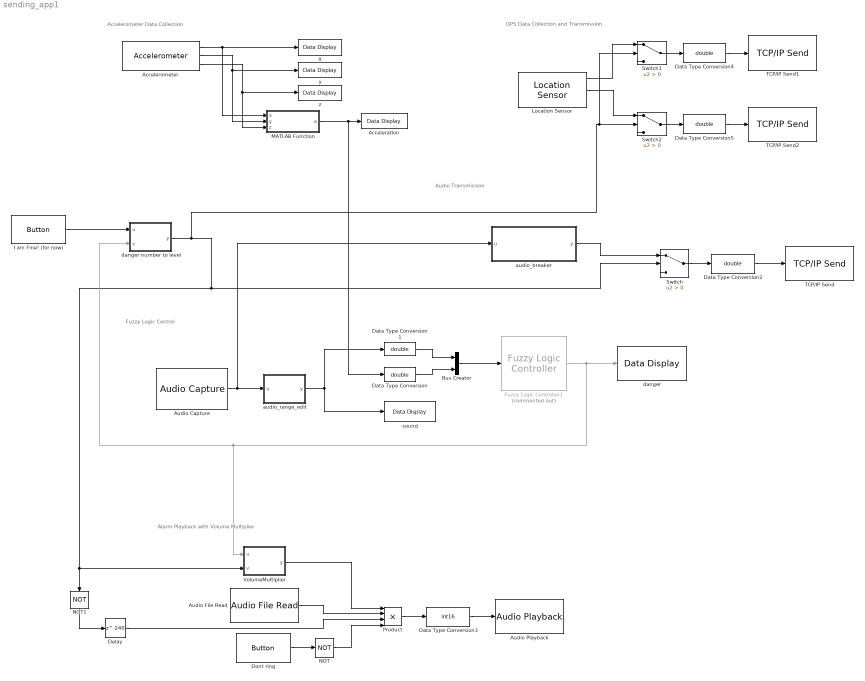
== matlab function sending_app1/MATLAB Function ==
function a = fcn(x,y,z)
x = x/60;
y = y/80;
z = z/80;

ai = (x^2)+(y^2)+(z^2);
b = ai^0.5;
a = b;

== matlab function sending_app1/audio_breaker ==
function y = fcn(u)
y = u(:,1);

== matlab function sending_app1/danger number to level
 ==
function y = fcn(u,v)
persistent flag;

    if isempty(flag)
        flag = 0;
    end

    if u == 1
        flag = 0;
        y = 0;
    elseif v > 0.45
        flag = 1;
        y = 1;
    else
        y = flag;
    end
end

== matlab function sending_app1/VolumeMultiplier ==
function y = fcn(u, v)
    if v ==1
               y = 1;
    elseif u < 0.25
        y = 0;
    elseif u >= 0.20 && u < 0.35
        y = 0.2;
    else
        y = 1;
    end

== matlab function sending_app1/audio_range_edit ==
function y = fcn(u)
ui = abs(u);
yi = mean(ui,2);
y = mean(yi)/20000;

/*
 * sending_app1.c
 *
 * Academic License - for use in teaching, academic research, and meeting
 * course requirements at degree granting institutions only.  Not for
 * government, commercial, or other organizational use.
 *
 * Code generation for model "sending_app1".
 *
 * Model version              : 1.29
 * Simulink Coder version : 9.8 (R2022b) 13-May-2022
 * C source code generated on : Sun Apr  7 22:21:16 2024
 *
 * Target selection: ert.tlc
 * Note: GRT includes extra infrastructure and instrumentation for prototyping
 * Embedded hardware selection: ARM Compatible->ARM Cortex
 * Code generation objectives: Unspecified
 * Validation result: Not run
 */

#include "sending_app1.h"
#include "rtwtypes.h"
#include "sending_app1_types.h"
#include <string.h>
#include <math.h>
#include "rt_nonfinite.h"
#include "sending_app1_private.h"
#include <stddef.h>

/* Block signals (default storage) */
B_sending_app1_T sending_app1_B;

/* Block states (default storage) */
DW_sending_app1_T sending_app1_DW;

/* Real-time model */
static RT_MODEL_sending_app1_T sending_app1_M_;
RT_MODEL_sending_app1_T *const sending_app1_M = &sending_app1_M_;

/* Forward declaration for local functions */
static void sending_app1_SystemCore_setup(codertarget_internal_androidT_T *obj);
static void sending_app1_SystemCore_setup_e(codertarget_internal_androidT_T *obj);
static void sending_app_SystemCore_setup_eu(codertarget_internal_androidT_T *obj);
static real_T sending_app1_trimf(real_T x, const real_T params[3]);
static void sending_app1_trimf_d(const real_T x[101], const real_T params[3],
  real_T y[101]);
static void rate_scheduler(void);

/*
 *         This function updates active task flag for each subrate.
 *         The function is called at model base rate, hence the
 *         generated code self-manages all its subrates.
 */
static void rate_scheduler(void)
{
  /* Compute which subrates run during the next base time step.  Subrates
   * are an integer multiple of the base rate counter.  Therefore, the subtask
   * counter is reset when it reaches its limit (zero means run).
   */
  (sending_app1_M->Timing.TaskCounters.TID[1])++;
  if ((sending_app1_M->Timing.TaskCounters.TID[1]) > 7) {/* Sample time: [0.1s, 0.0s] */
    sending_app1_M->Timing.TaskCounters.TID[1] = 0;
  }
}

real_T rt_roundd_snf(real_T u)
{
  real_T y;
  if (fabs(u) < 4.503599627370496E+15) {
    if (u >= 0.5) {
      y = floor(u + 0.5);
    } else if (u > -0.5) {
      y = u * 0.0;
    } else {
      y = ceil(u - 0.5);
    }
  } else {
    y = u;
  }

  return y;
}

static void sending_app1_SystemCore_setup(codertarget_internal_androidT_T *obj)
{
  real_T tmp;
  int32_T i;
  int16_T errorNo;
  uint16_T tmp_0;
  char_T b_str_data[7];
  char_T ipaddr[7];
  static const char_T tmp_1[7] = "Server";
  int32_T str_size_idx_1;
  obj->isInitialized = 1;
  errorNo = obj->errorNo_;
  obj->isServer_ = 1.0;
  for (i = 0; i < 7; i++) {
    ipaddr[i] = tmp_1[i];
  }

  tmp = rt_roundd_snf(obj->isServer_);
  if (tmp < 65536.0) {
    if (tmp >= 0.0) {
      tmp_0 = (uint16_T)tmp;
    } else {
      tmp_0 = 0U;
    }
  } else {
    tmp_0 = MAX_uint16_T;
  }

  TCPStreamSetup(25000, 0, &obj->connStream_, tmp_0, 0.0, &obj->errorNo_,
                 &ipaddr[0]);
  littleEndianCheck(&obj->isLittleEnd_);
  if ((errorNo != obj->errorNo_) && (obj->errorNo_ > 0) && (obj->errorNo_ < 10))
  {
    str_size_idx_1 = 1;
    ipaddr[0] = '\x00';
    if (obj->errorNo_ == 4) {
      UPDATE_TCP_LOGI(obj->errorNo_, 1.0, 0, 25000);
    } else {
      if (obj->errorNo_ == 5) {
        str_size_idx_1 = 7;
        for (i = 0; i < 7; i++) {
          ipaddr[i] = tmp_1[i];
        }
      }

      memcpy(&b_str_data[0], &ipaddr[0], (uint32_T)str_size_idx_1 * sizeof
             (char_T));
      UPDATE_TCP_LOGS(obj->errorNo_, 1.0, 0, &b_str_data[0]);
    }
  }
}

static void sending_app1_SystemCore_setup_e(codertarget_internal_androidT_T *obj)
{
  real_T tmp;
  int32_T i;
  int16_T errorNo;
  uint16_T tmp_0;
  char_T b_str_data[7];
  char_T ipaddr[7];
  static const char_T tmp_1[7] = "Server";
  int32_T str_size_idx_1;
  obj->isInitialized = 1;
  errorNo = obj->errorNo_;
  obj->isServer_ = 1.0;
  for (i = 0; i < 7; i++) {
    ipaddr[i] = tmp_1[i];
  }

  tmp = rt_roundd_snf(obj->isServer_);
  if (tmp < 65536.0) {
    if (tmp >= 0.0) {
      tmp_0 = (uint16_T)tmp;
    } else {
      tmp_0 = 0U;
    }
  } else {
    tmp_0 = MAX_uint16_T;
  }

  TCPStreamSetup(30000, 0, &obj->connStream_, tmp_0, 0.0, &obj->errorNo_,
                 &ipaddr[0]);
  littleEndianCheck(&obj->isLittleEnd_);
  if ((errorNo != obj->errorNo_) && (obj->errorNo_ > 0) && (obj->errorNo_ < 10))
  {
    str_size_idx_1 = 1;
    ipaddr[0] = '\x00';
    if (obj->errorNo_ == 4) {
      UPDATE_TCP_LOGI(obj->errorNo_, 2.0, 0, 25000);
    } else {
      if (obj->errorNo_ == 5) {
        str_size_idx_1 = 7;
        for (i = 0; i < 7; i++) {
          ipaddr[i] = tmp_1[i];
        }
      }

      memcpy(&b_str_data[0], &ipaddr[0], (uint32_T)str_size_idx_1 * sizeof
             (char_T));
      UPDATE_TCP_LOGS(obj->errorNo_, 2.0, 0, &b_str_data[0]);
    }
  }
}

static void sending_app_SystemCore_setup_eu(codertarget_internal_androidT_T *obj)
{
  real_T tmp;
  int32_T i;
  int16_T errorNo;
  uint16_T tmp_0;
  char_T b_str_data[7];
  char_T ipaddr[7];
  static const char_T tmp_1[7] = "Server";
  int32_T str_size_idx_1;
  obj->isInitialized = 1;
  errorNo = obj->errorNo_;
  obj->isServer_ = 1.0;
  for (i = 0; i < 7; i++) {
    ipaddr[i] = tmp_1[i];
  }

  tmp = rt_roundd_snf(obj->isServer_);
  if (tmp < 65536.0) {
    if (tmp >= 0.0) {
      tmp_0 = (uint16_T)tmp;
    } else {
      tmp_0 = 0U;
    }
  } else {
    tmp_0 = MAX_uint16_T;
  }

  TCPStreamSetup(35000, 0, &obj->connStream_, tmp_0, 0.0, &obj->errorNo_,
                 &ipaddr[0]);
  littleEndianCheck(&obj->isLittleEnd_);
  if ((errorNo != obj->errorNo_) && (obj->errorNo_ > 0) && (obj->errorNo_ < 10))
  {
    str_size_idx_1 = 1;
    ipaddr[0] = '\x00';
    if (obj->errorNo_ == 4) {
      UPDATE_TCP_LOGI(obj->errorNo_, 3.0, 0, 25000);
    } else {
      if (obj->errorNo_ == 5) {
        str_size_idx_1 = 7;
        for (i = 0; i < 7; i++) {
          ipaddr[i] = tmp_1[i];
        }
      }

      memcpy(&b_str_data[0], &ipaddr[0], (uint32_T)str_size_idx_1 * sizeof
             (char_T));
      UPDATE_TCP_LOGS(obj->errorNo_, 3.0, 0, &b_str_data[0]);
    }
  }
}

/* Function for MATLAB Function: '<S6>/Evaluate Rule Antecedents' */
static real_T sending_app1_trimf(real_T x, const real_T params[3])
{
  real_T y;
  y = 0.0;
  if ((params[0] != params[1]) && (params[0] < x) && (x < params[1])) {
    y = 1.0 / (params[1] - params[0]) * (x - params[0]);
  }

  if ((params[1] != params[2]) && (params[1] < x) && (x < params[2])) {
    y = 1.0 / (params[2] - params[1]) * (params[2] - x);
  }

  if (x == params[1]) {
    y = 1.0;
  }

  return y;
}

/* Function for MATLAB Function: '<S6>/Evaluate Rule Consequents' */
static void sending_app1_trimf_d(const real_T x[101], const real_T params[3],
  real_T y[101])
{
  int32_T i;
  sending_app1_B.a = params[0];
  sending_app1_B.b = params[1];
  sending_app1_B.c = params[2];
  for (i = 0; i < 101; i++) {
    sending_app1_B.x = x[i];
    y[i] = 0.0;
    if ((sending_app1_B.a != sending_app1_B.b) && (sending_app1_B.a <
         sending_app1_B.x) && (sending_app1_B.x < sending_app1_B.b)) {
      y[i] = 1.0 / (sending_app1_B.b - sending_app1_B.a) * (sending_app1_B.x -
        sending_app1_B.a);
    }

    if ((sending_app1_B.b != sending_app1_B.c) && (sending_app1_B.b <
         sending_app1_B.x) && (sending_app1_B.x < sending_app1_B.c)) {
      y[i] = 1.0 / (sending_app1_B.c - sending_app1_B.b) * (sending_app1_B.c -
        sending_app1_B.x);
    }

    if (sending_app1_B.x == sending_app1_B.b) {
      y[i] = 1.0;
    }
  }
}

/* Model step function */
void sending_app1_step(void)
{
  int32_T i;
  int32_T rtb_MATLABSystem_tmp;
  int32_T ui_tmp;
  real32_T b_a;
  real32_T c_a;
  real32_T rtb_Accelerometer_o1;
  real32_T rtb_Accelerometer_o2;
  real32_T rtb_Accelerometer_o3;
  real32_T rtb_a;
  int16_T errorNo;
  uint16_T tmp_0;
  char_T b_str_data[7];
  char_T b_FormatStringTerminated[5];
  char_T b_FormatStringTerminated_0[5];
  uint8_T xtmp;
  boolean_T rtb_NOT;
  boolean_T tmp;
  static const char_T tmp_1[7] = "Server";
  static const int8_T d[12] = { 1, 1, 2, 1, 2, 2, 2, 3, 3, 3, 3, 3 };

  static const real_T d_0[3] = { 0.583333333333333, 1.0, 1.41666666666667 };

  static const real_T c[3] = { 0.0833333333333333, 0.5, 0.916666666666667 };

  static const int8_T f[24] = { 1, 2, 3, 1, 2, 3, 1, 2, 3, 4, 4, 4, 1, 1, 1, 2,
    2, 2, 3, 3, 3, 1, 2, 3 };

  static const real_T e[3] = { 0.0, 0.0, 0.001 };

  static const real_T b[3] = { 0.0007, 0.005, 0.4167 };

  /* MATLABSystem: '<S3>/MATLAB System' */
  AUDIO_CAPTURE(&sending_app1_B.refData[0], 300);
  for (i = 0; i < 300; i++) {
    rtb_MATLABSystem_tmp = i << 1;
    sending_app1_B.MATLABSystem[i] = sending_app1_B.refData[rtb_MATLABSystem_tmp];
    sending_app1_B.MATLABSystem[i + 300] =
      sending_app1_B.refData[rtb_MATLABSystem_tmp + 1];
  }

  /* End of MATLABSystem: '<S3>/MATLAB System' */

  /* MATLABSystem: '<Root>/Audio File Read' */
  memset(&sending_app1_B.refData[0], 0, 600U * sizeof(int16_T));
  i = sending_app1_DW.obj_b.Idx;
  if (sending_app1_DW.obj_b.Idx < 0) {
    i = 0;
  }

  READ_AUDIOFILE_DATA(300U, 2U, &sending_app1_B.refData[0], (uint32_T)i);

  /* MATLAB Function: '<Root>/audio_range_edit' incorporates:
   *  MATLABSystem: '<S3>/MATLAB System'
   */
  for (rtb_MATLABSystem_tmp = 0; rtb_MATLABSystem_tmp < 600;
       rtb_MATLABSystem_tmp++) {
    errorNo = sending_app1_B.MATLABSystem[rtb_MATLABSystem_tmp];
    if (errorNo < 0) {
      i = -errorNo;
      if (-errorNo > 32767) {
        i = 32767;
      }

      sending_app1_B.ui[rtb_MATLABSystem_tmp] = (int16_T)i;
    } else {
      sending_app1_B.ui[rtb_MATLABSystem_tmp] = errorNo;
    }
  }

  for (i = 0; i < 300; i++) {
    sending_app1_B.DataTypeConversion2[i] = ((real_T)sending_app1_B.ui[i + 300]
      + (real_T)sending_app1_B.ui[i]) / 2.0;
  }

  sending_app1_B.y_l = sending_app1_B.DataTypeConversion2[0];
  for (i = 0; i < 299; i++) {
    sending_app1_B.y_l += sending_app1_B.DataTypeConversion2[i + 1];
  }

  sending_app1_B.y_l = sending_app1_B.y_l / 300.0 / 20000.0;

  /* End of MATLAB Function: '<Root>/audio_range_edit' */
  if (sending_app1_M->Timing.TaskCounters.TID[1] == 0) {
    /* MATLABSystem: '<S2>/Accelerometer' */
    sending_app1_B.out_m[0] = 0.0F;
    sending_app1_B.out_m[1] = 0.0F;
    sending_app1_B.out_m[2] = 0.0F;
    GET_ACCELEROMETER_DATA(&sending_app1_B.out_m[0], &sending_app1_B.out_m[1],
      &sending_app1_B.out_m[2]);
    rtb_Accelerometer_o1 = sending_app1_B.out_m[0];
    rtb_Accelerometer_o2 = sending_app1_B.out_m[1];
    rtb_Accelerometer_o3 = sending_app1_B.out_m[2];

    /* MATLAB Function: '<Root>/MATLAB Function' incorporates:
     *  MATLABSystem: '<S2>/Accelerometer'
     */
    rtb_a = sending_app1_B.out_m[0] / 60.0F;
    b_a = sending_app1_B.out_m[1] / 80.0F;
    c_a = sending_app1_B.out_m[2] / 80.0F;
    rtb_a = (real32_T)sqrt((rtb_a * rtb_a + b_a * b_a) + c_a * c_a);

    /* DataTypeConversion: '<Root>/Data Type Conversion' */
    sending_app1_B.DataTypeConversion = rtb_a;
  }

  /* Outputs for Atomic SubSystem: '<Root>/Fuzzy Logic  Controller1' */
  /* MATLAB Function: '<S6>/Evaluate Rule Antecedents' incorporates:
   *  DataTypeConversion: '<S6>/InputConversion'
   */
  sending_app1_B.y = 0.0;
  sending_app1_B.inputMFCache[0] = sending_app1_trimf(sending_app1_B.y_l, b);
  sending_app1_B.inputMFCache[1] = sending_app1_trimf(sending_app1_B.y_l, c);
  sending_app1_B.inputMFCache[2] = sending_app1_trimf(sending_app1_B.y_l, d_0);
  sending_app1_B.inputMFCache[3] = sending_app1_trimf(sending_app1_B.y_l, e);
  sending_app1_B.dv3[0] = -0.416666666666667;
  sending_app1_B.dv3[1] = 0.0;
  sending_app1_B.dv3[2] = 0.416666666666667;
  sending_app1_B.inputMFCache[4] = sending_app1_trimf
    (sending_app1_B.DataTypeConversion, sending_app1_B.dv3);
  sending_app1_B.inputMFCache[5] = sending_app1_trimf
    (sending_app1_B.DataTypeConversion, c);
  sending_app1_B.inputMFCache[6] = sending_app1_trimf
    (sending_app1_B.DataTypeConversion, d_0);
  for (i = 0; i < 12; i++) {
    sending_app1_B.rtb_InputConversion_idx_1 = sending_app1_B.inputMFCache[f[i]
      - 1];
    if (sending_app1_B.rtb_InputConversion_idx_1 < 1.0) {
      sending_app1_B.y_k = sending_app1_B.rtb_InputConversion_idx_1;
    } else {
      sending_app1_B.y_k = 1.0;
    }

    sending_app1_B.rtb_InputConversion_idx_1 = sending_app1_B.inputMFCache[f[i +
      12] + 3];
    if ((sending_app1_B.y_k > sending_app1_B.rtb_InputConversion_idx_1) ||
        (rtIsNaN(sending_app1_B.y_k) && (!rtIsNaN
          (sending_app1_B.rtb_InputConversion_idx_1)))) {
      sending_app1_B.y_k = sending_app1_B.rtb_InputConversion_idx_1;
    }

    sending_app1_B.y += sending_app1_B.y_k;
    sending_app1_B.antecedentOutputs[i] = sending_app1_B.y_k;
  }

  /* MATLAB Function: '<S6>/Evaluate Rule Consequents' incorporates:
   *  Constant: '<S6>/Output Sample Points'
   */
  sending_app1_B.dv3[0] = -0.416666666666667;
  sending_app1_B.dv3[1] = 0.0;
  sending_app1_B.dv3[2] = 0.416666666666667;
  sending_app1_trimf_d(sending_app1_P.OutputSamplePoints_Value,
                       sending_app1_B.dv3, sending_app1_B.dv);
  sending_app1_trimf_d(sending_app1_P.OutputSamplePoints_Value, c,
                       sending_app1_B.dv1);
  sending_app1_trimf_d(sending_app1_P.OutputSamplePoints_Value, d_0,
                       sending_app1_B.dv2);
  for (i = 0; i < 101; i++) {
    sending_app1_B.aggregatedOutputs[i] = 0.0;
    sending_app1_B.outputMFCache[3 * i] = sending_app1_B.dv[i];
    sending_app1_B.outputMFCache[3 * i + 1] = sending_app1_B.dv1[i];
    sending_app1_B.outputMFCache[3 * i + 2] = sending_app1_B.dv2[i];
  }

  for (i = 0; i < 12; i++) {
    sending_app1_B.rtb_InputConversion_idx_1 =
      sending_app1_B.antecedentOutputs[i];
    for (rtb_MATLABSystem_tmp = 0; rtb_MATLABSystem_tmp < 101;
         rtb_MATLABSystem_tmp++) {
      sending_app1_B.y_k = sending_app1_B.aggregatedOutputs[rtb_MATLABSystem_tmp];
      sending_app1_B.rtb_InputConversion_idx_0 = sending_app1_B.outputMFCache[(3
        * rtb_MATLABSystem_tmp + d[i]) - 1];
      if ((sending_app1_B.rtb_InputConversion_idx_0 >
           sending_app1_B.rtb_InputConversion_idx_1) || (rtIsNaN
           (sending_app1_B.rtb_InputConversion_idx_0) && (!rtIsNaN
            (sending_app1_B.rtb_InputConversion_idx_1)))) {
        sending_app1_B.rtb_InputConversion_idx_0 =
          sending_app1_B.rtb_InputConversion_idx_1;
      }

      if ((sending_app1_B.y_k < sending_app1_B.rtb_InputConversion_idx_0) ||
          (rtIsNaN(sending_app1_B.y_k) && (!rtIsNaN
            (sending_app1_B.rtb_InputConversion_idx_0)))) {
        sending_app1_B.y_k = sending_app1_B.rtb_InputConversion_idx_0;
      }

      sending_app1_B.aggregatedOutputs[rtb_MATLABSystem_tmp] =
        sending_app1_B.y_k;
    }
  }

  /* End of MATLAB Function: '<S6>/Evaluate Rule Consequents' */

  /* MATLAB Function: '<S6>/Defuzzify Outputs' incorporates:
   *  Constant: '<S6>/Output Sample Points'
   *  MATLAB Function: '<S6>/Evaluate Rule Antecedents'
   */
  if (sending_app1_B.y == 0.0) {
    sending_app1_B.rtb_InputConversion_idx_1 = 0.5;
  } else {
    sending_app1_B.y = 0.0;
    sending_app1_B.rtb_InputConversion_idx_1 = 0.0;
    for (i = 0; i < 101; i++) {
      sending_app1_B.rtb_InputConversion_idx_1 +=
        sending_app1_B.aggregatedOutputs[i];
    }

    if (sending_app1_B.rtb_InputConversion_idx_1 == 0.0) {
      sending_app1_B.rtb_InputConversion_idx_1 =
        (sending_app1_P.OutputSamplePoints_Value[0] +
         sending_app1_P.OutputSamplePoints_Value[100]) / 2.0;
    } else {
      for (i = 0; i < 101; i++) {
        sending_app1_B.y += sending_app1_P.OutputSamplePoints_Value[i] *
          sending_app1_B.aggregatedOutputs[i];
      }

      sending_app1_B.rtb_InputConversion_idx_1 = 1.0 /
        sending_app1_B.rtb_InputConversion_idx_1 * sending_app1_B.y;
    }
  }

  /* End of MATLAB Function: '<S6>/Defuzzify Outputs' */
  /* End of Outputs for SubSystem: '<Root>/Fuzzy Logic  Controller1' */
  if (sending_app1_M->Timing.TaskCounters.TID[1] == 0) {
    /* MATLABSystem: '<S7>/Button' */
    sending_app1_B.Button = BUTTON_GETSTATE(2.0);
  }

  /* MATLAB Function: '<Root>/danger number to level ' */
  if (sending_app1_B.Button) {
    sending_app1_DW.flag = 0.0;
    sending_app1_B.y = 0.0;
  } else if (sending_app1_B.rtb_InputConversion_idx_1 > 0.45) {
    sending_app1_DW.flag = 1.0;
    sending_app1_B.y = 1.0;
  } else {
    sending_app1_B.y = sending_app1_DW.flag;
  }

  /* End of MATLAB Function: '<Root>/danger number to level ' */

  /* MATLAB Function: '<Root>/VolumeMultiplier' */
  if (sending_app1_B.y == 1.0) {
    sending_app1_B.y_k = 1.0;
  } else if (sending_app1_B.rtb_InputConversion_idx_1 < 0.25) {
    sending_app1_B.y_k = 0.0;
  } else if ((sending_app1_B.rtb_InputConversion_idx_1 >= 0.2) &&
             (sending_app1_B.rtb_InputConversion_idx_1 < 0.35)) {
    sending_app1_B.y_k = 0.2;
  } else {
    sending_app1_B.y_k = 1.0;
  }

  /* End of MATLAB Function: '<Root>/VolumeMultiplier' */

  /* MATLABSystem: '<S5>/Button' */
  rtb_NOT = BUTTON_GETSTATE(1.0);

  /* Logic: '<Root>/NOT' incorporates:
   *  MATLABSystem: '<S5>/Button'
   */
  rtb_NOT = !rtb_NOT;

  /* MATLABSystem: '<S4>/Audio Playback' */
  if (sending_app1_DW.obj.SampleFreq != sending_app1_P.AudioPlayback_SampleFreq)
  {
    sending_app1_DW.obj.SampleFreq = sending_app1_P.AudioPlayback_SampleFreq;
  }

  /* Delay: '<Root>/Delay' */
  tmp = sending_app1_DW.Delay_DSTATE[0U];

  /* MATLABSystem: '<S4>/Audio Playback' incorporates:
   *  DataTypeConversion: '<Root>/Data Type Conversion3'
   *  MATLABSystem: '<Root>/Audio File Read'
   */
  for (i = 0; i < 300; i++) {
    /* DataTypeConversion: '<Root>/Data Type Conversion3' incorporates:
     *  MATLABSystem: '<Root>/Audio File Read'
     *  Product: '<Root>/Product'
     */
    rtb_MATLABSystem_tmp = (int32_T)fmod((int32_T)floor(sending_app1_B.y_k *
      (real_T)sending_app1_B.refData[i] * (real_T)tmp * (real_T)rtb_NOT),
      65536.0);
    ui_tmp = i << 1;
    sending_app1_B.ui[ui_tmp] = (int16_T)(rtb_MATLABSystem_tmp < 0 ? (int32_T)
      (int16_T)-(int16_T)(uint16_T)-(real_T)rtb_MATLABSystem_tmp :
      rtb_MATLABSystem_tmp);

    /* DataTypeConversion: '<Root>/Data Type Conversion3' incorporates:
     *  MATLABSystem: '<Root>/Audio File Read'
     *  Product: '<Root>/Product'
     */
    rtb_MATLABSystem_tmp = (int32_T)fmod((int32_T)floor((real_T)
      sending_app1_B.refData[i + 300] * sending_app1_B.y_k * (real_T)tmp *
      (real_T)rtb_NOT), 65536.0);
    sending_app1_B.ui[ui_tmp + 1] = (int16_T)(rtb_MATLABSystem_tmp < 0 ?
      (int32_T)(int16_T)-(int16_T)(uint16_T)-(real_T)rtb_MATLABSystem_tmp :
      rtb_MATLABSystem_tmp);
  }

  AUDIO_PLAYBACK(&sending_app1_B.ui[0], sending_app1_DW.obj.FrameSize);

  /* Switch: '<Root>/Switch' */
  rtb_NOT = (sending_app1_B.y > sending_app1_P.Switch_Threshold);

  /* DataTypeConversion: '<Root>/Data Type Conversion2' */
  for (i = 0; i < 300; i++) {
    /* Switch: '<Root>/Switch' incorporates:
     *  DataTypeConversion: '<Root>/Data Type Conversion2'
     *  MATLAB Function: '<Root>/audio_breaker'
     *  MATLABSystem: '<S3>/MATLAB System'
     */
    if (rtb_NOT) {
      sending_app1_B.DataTypeConversion2[i] = sending_app1_B.MATLABSystem[i];
    } else {
      sending_app1_B.DataTypeConversion2[i] = 0.0;
    }
  }

  /* End of DataTypeConversion: '<Root>/Data Type Conversion2' */

  /* MATLABSystem: '<Root>/TCP//IP Send' */
  errorNo = sending_app1_DW.obj_no.errorNo_;
  if (sending_app1_DW.obj_no.isLittleEnd_ == 1) {
    for (i = 0; i < 300; i++) {
      memcpy((void *)&sending_app1_B.b_x[0], (void *)
             &sending_app1_B.DataTypeConversion2[i], (size_t)8 * sizeof(uint8_T));
      xtmp = sending_app1_B.b_x[0];
      sending_app1_B.b_x[0] = sending_app1_B.b_x[7];
      sending_app1_B.b_x[7] = xtmp;
      xtmp = sending_app1_B.b_x[1];
      sending_app1_B.b_x[1] = sending_app1_B.b_x[6];
      sending_app1_B.b_x[6] = xtmp;
      xtmp = sending_app1_B.b_x[2];
      sending_app1_B.b_x[2] = sending_app1_B.b_x[5];
      sending_app1_B.b_x[5] = xtmp;
      xtmp = sending_app1_B.b_x[3];
      sending_app1_B.b_x[3] = sending_app1_B.b_x[4];
      sending_app1_B.b_x[4] = xtmp;
      memcpy((void *)&sending_app1_B.y_k, (void *)&sending_app1_B.b_x[0],
             (size_t)1 * sizeof(real_T));
      sending_app1_B.DataTypeConversion2[i] = sending_app1_B.y_k;
    }
  }

  sending_app1_B.y_k = rt_roundd_snf(sending_app1_DW.obj_no.isServer_);
  if (sending_app1_B.y_k < 65536.0) {
    if (sending_app1_B.y_k >= 0.0) {
      tmp_0 = (uint16_T)sending_app1_B.y_k;
    } else {
      tmp_0 = 0U;
    }
  } else {
    tmp_0 = MAX_uint16_T;
  }

  TCPStreamStepSend(&sending_app1_B.DataTypeConversion2[0], 2400U,
                    sending_app1_DW.obj_no.connStream_, tmp_0,
                    &sending_app1_DW.obj_no.errorNo_);
  if ((errorNo != sending_app1_DW.obj_no.errorNo_) &&
      (sending_app1_DW.obj_no.errorNo_ > 0) && (sending_app1_DW.obj_no.errorNo_ <
       10)) {
    rtb_MATLABSystem_tmp = 1;
    sending_app1_B.str_data[0] = '\x00';
    if (sending_app1_DW.obj_no.errorNo_ == 4) {
      UPDATE_TCP_LOGI(sending_app1_DW.obj_no.errorNo_, 1.0, 0, 25000);
    } else {
      if (sending_app1_DW.obj_no.errorNo_ == 5) {
        rtb_MATLABSystem_tmp = 7;
        for (i = 0; i < 7; i++) {
          sending_app1_B.str_data[i] = tmp_1[i];
        }
      }

      memcpy(&b_str_data[0], &sending_app1_B.str_data[0], (uint32_T)
             rtb_MATLABSystem_tmp * sizeof(char_T));
      UPDATE_TCP_LOGS(sending_app1_DW.obj_no.errorNo_, 1.0, 0, &b_str_data[0]);
    }
  }

  /* End of MATLABSystem: '<Root>/TCP//IP Send' */

  /* MATLABSystem: '<S8>/Location Sensor' */
  sending_app1_B.out[0] = 0.0;
  sending_app1_B.out[1] = 0.0;
  sending_app1_B.out[2] = 0.0;
  GET_LOCATION_DATA(&sending_app1_B.out[0], &sending_app1_B.out[1],
                    &sending_app1_B.out[2]);

  /* Switch: '<Root>/Switch1' incorporates:
   *  MATLABSystem: '<S8>/Location Sensor'
   */
  if (sending_app1_B.y > sending_app1_P.Switch1_Threshold) {
    sending_app1_B.rtb_InputConversion_idx_0 = sending_app1_B.out[0];
  } else {
    sending_app1_B.rtb_InputConversion_idx_0 = 0.0;
  }

  /* End of Switch: '<Root>/Switch1' */

  /* MATLABSystem: '<Root>/TCP//IP Send1' */
  errorNo = sending_app1_DW.obj_n.errorNo_;
  if (sending_app1_DW.obj_n.isLittleEnd_ == 1) {
    memcpy((void *)&sending_app1_B.b_x_c[0], (void *)
           &sending_app1_B.rtb_InputConversion_idx_0, (size_t)8 * sizeof(uint8_T));
    xtmp = sending_app1_B.b_x_c[0];
    sending_app1_B.b_x_c[0] = sending_app1_B.b_x_c[7];
    sending_app1_B.b_x_c[7] = xtmp;
    xtmp = sending_app1_B.b_x_c[1];
    sending_app1_B.b_x_c[1] = sending_app1_B.b_x_c[6];
    sending_app1_B.b_x_c[6] = xtmp;
    xtmp = sending_app1_B.b_x_c[2];
    sending_app1_B.b_x_c[2] = sending_app1_B.b_x_c[5];
    sending_app1_B.b_x_c[5] = xtmp;
    xtmp = sending_app1_B.b_x_c[3];
    sending_app1_B.b_x_c[3] = sending_app1_B.b_x_c[4];
    sending_app1_B.b_x_c[4] = xtmp;
    memcpy((void *)&sending_app1_B.rtb_InputConversion_idx_0, (void *)
           &sending_app1_B.b_x_c[0], (size_t)1 * sizeof(real_T));
  }

  sending_app1_B.y_k = rt_roundd_snf(sending_app1_DW.obj_n.isServer_);
  if (sending_app1_B.y_k < 65536.0) {
    if (sending_app1_B.y_k >= 0.0) {
      tmp_0 = (uint16_T)sending_app1_B.y_k;
    } else {
      tmp_0 = 0U;
    }
  } else {
    tmp_0 = MAX_uint16_T;
  }

  TCPStreamStepSend(&sending_app1_B.rtb_InputConversion_idx_0, 8U,
                    sending_app1_DW.obj_n.connStream_, tmp_0,
                    &sending_app1_DW.obj_n.errorNo_);
  if ((errorNo != sending_app1_DW.obj_n.errorNo_) &&
      (sending_app1_DW.obj_n.errorNo_ > 0) && (sending_app1_DW.obj_n.errorNo_ <
       10)) {
    rtb_MATLABSystem_tmp = 1;
    sending_app1_B.str_data[0] = '\x00';
    if (sending_app1_DW.obj_n.errorNo_ == 4) {
      UPDATE_TCP_LOGI(sending_app1_DW.obj_n.errorNo_, 2.0, 0, 25000);
    } else {
      if (sending_app1_DW.obj_n.errorNo_ == 5) {
        rtb_MATLABSystem_tmp = 7;
        for (i = 0; i < 7; i++) {
          sending_app1_B.str_data[i] = tmp_1[i];
        }
      }

      memcpy(&b_str_data[0], &sending_app1_B.str_data[0], (uint32_T)
             rtb_MATLABSystem_tmp * sizeof(char_T));
      UPDATE_TCP_LOGS(sending_app1_DW.obj_n.errorNo_, 2.0, 0, &b_str_data[0]);
    }
  }

  /* End of MATLABSystem: '<Root>/TCP//IP Send1' */

  /* Switch: '<Root>/Switch2' incorporates:
   *  MATLABSystem: '<S8>/Location Sensor'
   */
  if (sending_app1_B.y > sending_app1_P.Switch2_Threshold) {
    sending_app1_B.rtb_InputConversion_idx_0 = sending_app1_B.out[1];
  } else {
    sending_app1_B.rtb_InputConversion_idx_0 = 0.0;
  }

  /* End of Switch: '<Root>/Switch2' */

  /* MATLABSystem: '<Root>/TCP//IP Send2' */
  errorNo = sending_app1_DW.obj_g.errorNo_;
  if (sending_app1_DW.obj_g.isLittleEnd_ == 1) {
    memcpy((void *)&sending_app1_B.b_x_k[0], (void *)
           &sending_app1_B.rtb_InputConversion_idx_0, (size_t)8 * sizeof(uint8_T));
    xtmp = sending_app1_B.b_x_k[0];
    sending_app1_B.b_x_k[0] = sending_app1_B.b_x_k[7];
    sending_app1_B.b_x_k[7] = xtmp;
    xtmp = sending_app1_B.b_x_k[1];
    sending_app1_B.b_x_k[1] = sending_app1_B.b_x_k[6];
    sending_app1_B.b_x_k[6] = xtmp;
    xtmp = sending_app1_B.b_x_k[2];
    sending_app1_B.b_x_k[2] = sending_app1_B.b_x_k[5];
    sending_app1_B.b_x_k[5] = xtmp;
    xtmp = sending_app1_B.b_x_k[3];
    sending_app1_B.b_x_k[3] = sending_app1_B.b_x_k[4];
    sending_app1_B.b_x_k[4] = xtmp;
    memcpy((void *)&sending_app1_B.rtb_InputConversion_idx_0, (void *)
           &sending_app1_B.b_x_k[0], (size_t)1 * sizeof(real_T));
  }

  sending_app1_B.y_k = rt_roundd_snf(sending_app1_DW.obj_g.isServer_);
  if (sending_app1_B.y_k < 65536.0) {
    if (sending_app1_B.y_k >= 0.0) {
      tmp_0 = (uint16_T)sending_app1_B.y_k;
    } else {
      tmp_0 = 0U;
    }
  } else {
    tmp_0 = MAX_uint16_T;
  }

  TCPStreamStepSend(&sending_app1_B.rtb_InputConversion_idx_0, 8U,
                    sending_app1_DW.obj_g.connStream_, tmp_0,
                    &sending_app1_DW.obj_g.errorNo_);
  if ((errorNo != sending_app1_DW.obj_g.errorNo_) &&
      (sending_app1_DW.obj_g.errorNo_ > 0) && (sending_app1_DW.obj_g.errorNo_ <
       10)) {
    rtb_MATLABSystem_tmp = 1;
    sending_app1_B.str_data[0] = '\x00';
    if (sending_app1_DW.obj_g.errorNo_ == 4) {
      UPDATE_TCP_LOGI(sending_app1_DW.obj_g.errorNo_, 3.0, 0, 25000);
    } else {
      if (sending_app1_DW.obj_g.errorNo_ == 5) {
        rtb_MATLABSystem_tmp = 7;
        for (i = 0; i < 7; i++) {
          sending_app1_B.str_data[i] = tmp_1[i];
        }
      }

      memcpy(&b_str_data[0], &sending_app1_B.str_data[0], (uint32_T)
             rtb_MATLABSystem_tmp * sizeof(char_T));
      UPDATE_TCP_LOGS(sending_app1_DW.obj_g.errorNo_, 3.0, 0, &b_str_data[0]);
    }
  }

  /* End of MATLABSystem: '<Root>/TCP//IP Send2' */

  /* MATLABSystem: '<S14>/DataDisplay' incorporates:
   *  MATLABSystem: '<S11>/DataDisplay'
   *  MATLABSystem: '<S16>/DataDisplay'
   *  MATLABSystem: '<S17>/DataDisplay'
   *  MATLABSystem: '<S18>/DataDisplay'
   *  MATLABSystem: '<S1>/DataDisplay'
   */
  b_FormatStringTerminated_0[0] = '%';
  b_FormatStringTerminated_0[1] = '.';
  b_FormatStringTerminated_0[2] = '6';
  b_FormatStringTerminated_0[3] = 'f';
  b_FormatStringTerminated_0[4] = '\x00';
  for (i = 0; i < 5; i++) {
    b_FormatStringTerminated[i] = b_FormatStringTerminated_0[i];
  }

  PUT_DATADISPLAY_DATA(&sending_app1_B.rtb_InputConversion_idx_1, 3.0, 9, 1,
                       &b_FormatStringTerminated[0]);

  /* End of MATLABSystem: '<S14>/DataDisplay' */
  if (sending_app1_M->Timing.TaskCounters.TID[1] == 0) {
    /* MATLABSystem: '<S1>/DataDisplay' */
    sending_app1_B.rtb_InputConversion_idx_1 = rtb_a;
    for (i = 0; i < 5; i++) {
      b_FormatStringTerminated[i] = b_FormatStringTerminated_0[i];
    }

    PUT_DATADISPLAY_DATA(&sending_app1_B.rtb_InputConversion_idx_1, 1.0, 9, 1,
                         &b_FormatStringTerminated[0]);

    /* MATLABSystem: '<S11>/DataDisplay' */
    sending_app1_B.rtb_InputConversion_idx_1 = rtb_Accelerometer_o1;
    for (i = 0; i < 5; i++) {
      b_FormatStringTerminated[i] = b_FormatStringTerminated_0[i];
    }

    PUT_DATADISPLAY_DATA(&sending_app1_B.rtb_InputConversion_idx_1, 2.0, 9, 1,
                         &b_FormatStringTerminated[0]);

    /* MATLABSystem: '<S17>/DataDisplay' */
    sending_app1_B.rtb_InputConversion_idx_1 = rtb_Accelerometer_o2;
    for (i = 0; i < 5; i++) {
      b_FormatStringTerminated[i] = b_FormatStringTerminated_0[i];
    }

    PUT_DATADISPLAY_DATA(&sending_app1_B.rtb_InputConversion_idx_1, 5.0, 9, 1,
                         &b_FormatStringTerminated[0]);

    /* MATLABSystem: '<S18>/DataDisplay' */
    sending_app1_B.rtb_InputConversion_idx_1 = rtb_Accelerometer_o3;
    for (i = 0; i < 5; i++) {
      b_FormatStringTerminated[i] = b_FormatStringTerminated_0[i];
    }

    PUT_DATADISPLAY_DATA(&sending_app1_B.rtb_InputConversion_idx_1, 6.0, 9, 1,
                         &b_FormatStringTerminated[0]);
  }

  /* MATLABSystem: '<S16>/DataDisplay' */
  PUT_DATADISPLAY_DATA(&sending_app1_B.y_l, 4.0, 9, 1,
                       &b_FormatStringTerminated_0[0]);

  /* Update for Delay: '<Root>/Delay' incorporates:
   *  Logic: '<Root>/NOT1'
   */
  for (i = 0; i < 239; i++) {
    sending_app1_DW.Delay_DSTATE[i] = sending_app1_DW.Delay_DSTATE[i + 1];
  }

  sending_app1_DW.Delay_DSTATE[239] = !(sending_app1_B.y != 0.0);

  /* End of Update for Delay: '<Root>/Delay' */
  rate_scheduler();
}
